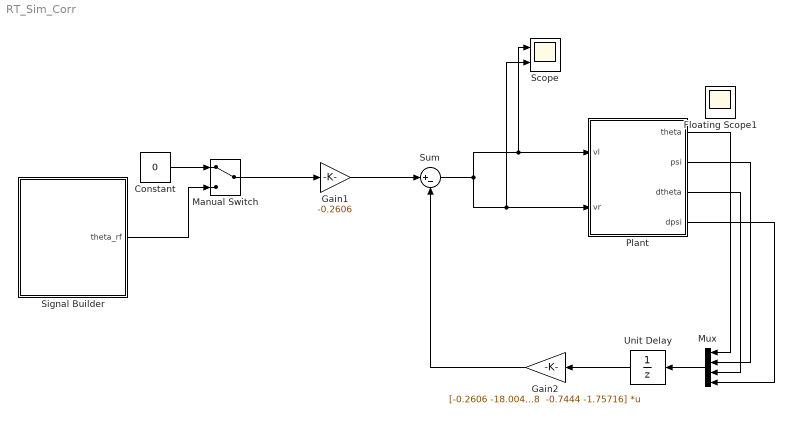
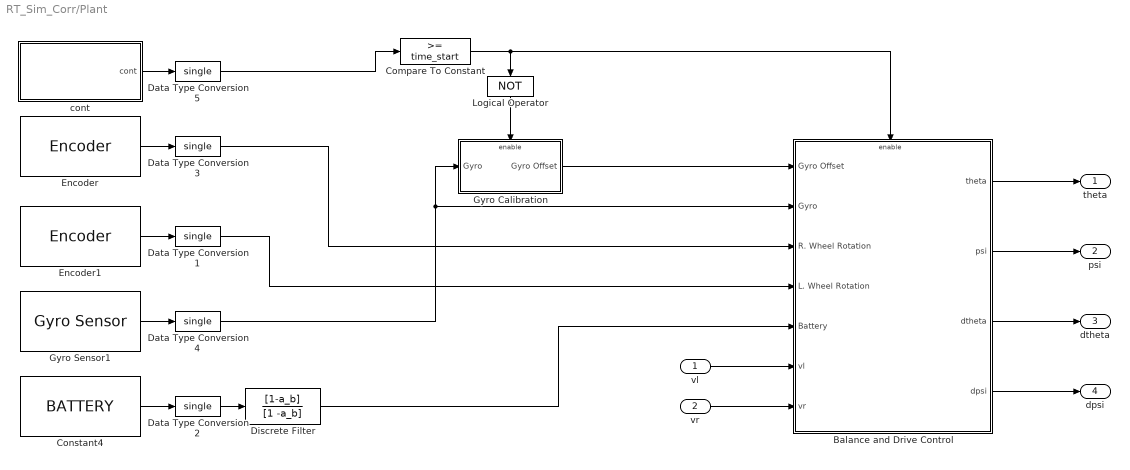
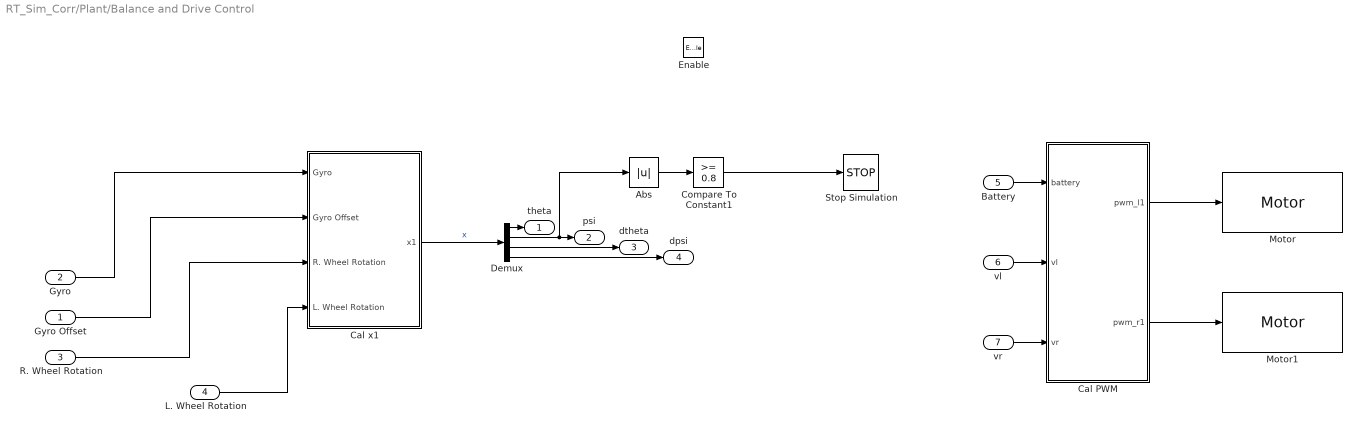
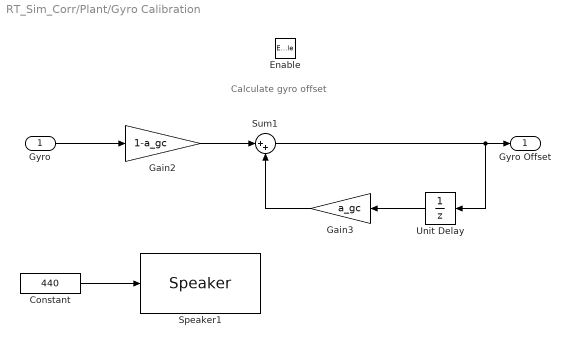
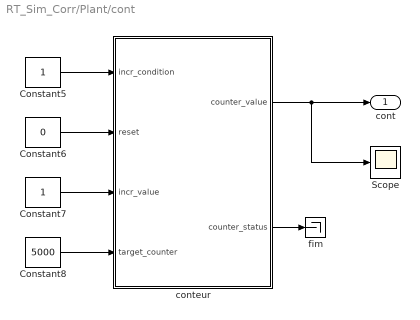
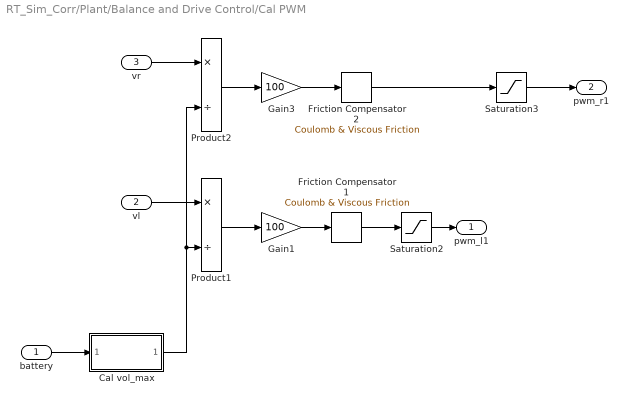
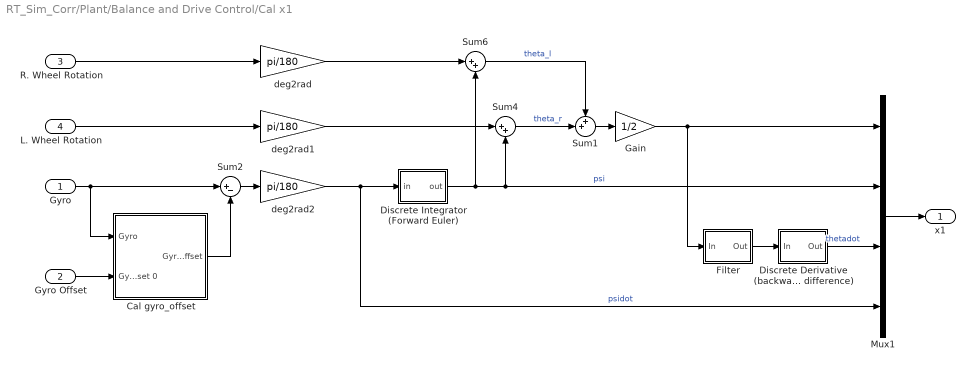
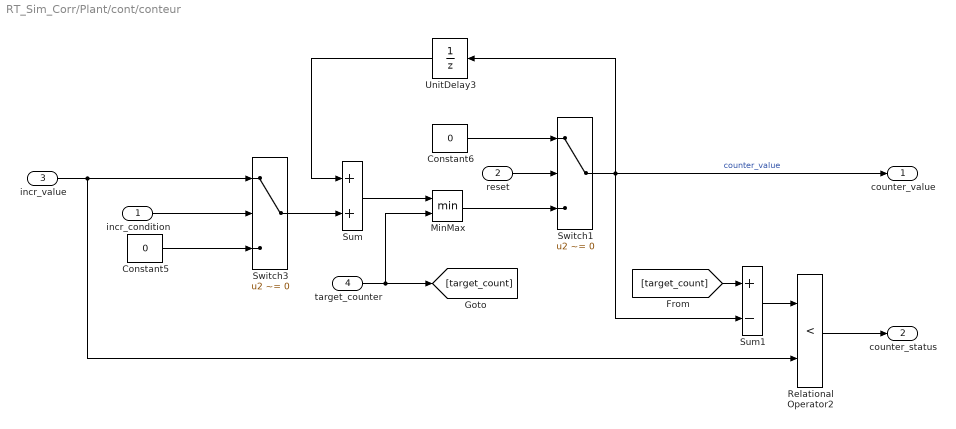
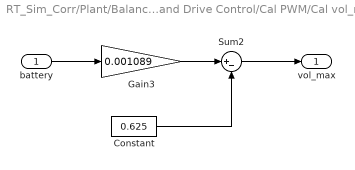
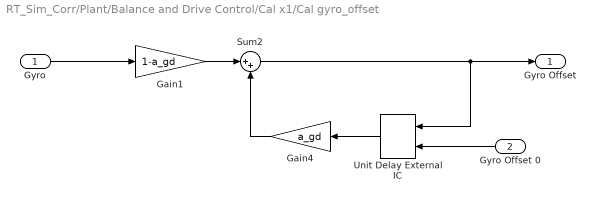
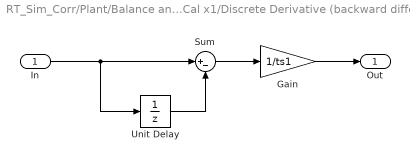
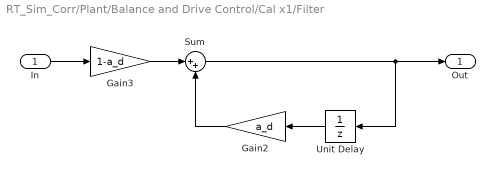
== system RT_Sim_Corr/Signal Builder ==
  Demux : Demux  Tag=STV Demux  Outputs=1
  FromWs : FromWorkspace  Tag=STV FromWs  VariableName=tuvar
  theta_rf : Outport  Tag=STV Outport
  wires:
  FromWs/1 -> Demux/1
  Demux/1 -> theta_rf/1

== system RT_Sim_Corr/Plant/Balance and Drive Control/Cal x1/Discrete Integrator (Forward Euler) ==
  in : Inport
  Gain : Gain  Gain=ts1  OutDataTypeStr=Inherit: Same as input  ParamDataTypeStr=Inherit: Same as input
  Sum : Sum  Inputs=|++  OutDataTypeStr=Inherit: Same as first input
  Unit Delay : UnitDelay  SampleTime=-1  HasFrameUpgradeWarning=on
  out : Outport
  wires:
  Unit Delay/1 -> Sum/2, out/1
  Gain/1 -> Sum/1
  Sum/1 -> Unit Delay/1
  in/1 -> Gain/1

/*
 * Classroom License -- for classroom instructional use only.  Not for
 * government, commercial, academic research, or other organizational use.
 *
 * File: RT_Sim_Corr.c
 *
 * Code generated for Simulink model 'RT_Sim_Corr'.
 *
 * Model version                  : 1.920
 * Simulink Coder version         : 9.3 (R2020a) 18-Nov-2019
 * C/C++ source code generated on : Mon Jul 27 10:23:26 2026
 *
 * Target selection: ert.tlc
 * Embedded hardware selection: ARM Compatible->ARM 9
 * Code generation objectives: Unspecified
 * Validation result: Not run
 */

#include "RT_Sim_Corr.h"
#include "RT_Sim_Corr_private.h"
#include "RT_Sim_Corr_dt.h"

/* Block signals (default storage) */
BlockIO_RT_Sim_Corr RT_Sim_Corr_B;

/* Block states (default storage) */
D_Work_RT_Sim_Corr RT_Sim_Corr_DWork;

/* Real-time model */
RT_MODEL_RT_Sim_Corr RT_Sim_Corr_M_;
RT_MODEL_RT_Sim_Corr *const RT_Sim_Corr_M = &RT_Sim_Corr_M_;
static void rate_scheduler(void);

/*
 *   This function updates active task flag for each subrate.
 * The function is called at model base rate, hence the
 * generated code self-manages all its subrates.
 */
static void rate_scheduler(void)
{
  /* Compute which subrates run during the next base time step.  Subrates
   * are an integer multiple of the base rate counter.  Therefore, the subtask
   * counter is reset when it reaches its limit (zero means run).
   */
  (RT_Sim_Corr_M->Timing.TaskCounters.TID[2])++;
  if ((RT_Sim_Corr_M->Timing.TaskCounters.TID[2]) > 49) {/* Sample time: [0.2s, 0.0s] */
    RT_Sim_Corr_M->Timing.TaskCounters.TID[2] = 0;
  }
}

/* Model step function */
void RT_Sim_Corr_step(void)
{
  /* local block i/o variables */
  real_T rtb_Saturation3;
  real32_T rtb_Sum2;
  real32_T rtb_Sum;
  real32_T rtb_Sum_nvdedzgoqp;
  int32_T rtb_Encoder1_0;
  int32_T rtb_Encoder1_1;
  int32_T rtb_Encoder1_2;
  int8_T tmp;
  boolean_T Compare;
  real32_T u0;
  real_T tmp_0;
  real_T rtb_Saturation3_tmp;

  /* Reset subsysRan breadcrumbs */
  srClearBC(RT_Sim_Corr_DWork.BalanceandDriveControl_SubsysRa);

  /* Reset subsysRan breadcrumbs */
  srClearBC(RT_Sim_Corr_DWork.GyroCalibration_SubsysRanBC);

  /* FromWorkspace: '<S2>/FromWs' */
  {
    real_T *pDataValues = (real_T *) RT_Sim_Corr_DWork.FromWs_PWORK.DataPtr;
    real_T *pTimeValues = (real_T *) RT_Sim_Corr_DWork.FromWs_PWORK.TimePtr;
    int_T currTimeIndex = RT_Sim_Corr_DWork.FromWs_IWORK.PrevIndex;
    real_T t = RT_Sim_Corr_M->Timing.t[0];

    /* Get index */
    if (t <= pTimeValues[0]) {
      currTimeIndex = 0;
    } else if (t >= pTimeValues[7]) {
      currTimeIndex = 6;
    } else {
      if (t < pTimeValues[currTimeIndex]) {
        while (t < pTimeValues[currTimeIndex]) {
          currTimeIndex--;
        }
      } else {
        while (t >= pTimeValues[currTimeIndex + 1]) {
          currTimeIndex++;
        }
      }
    }

    RT_Sim_Corr_DWork.FromWs_IWORK.PrevIndex = currTimeIndex;

    /* Post output */
    {
      real_T t1 = pTimeValues[currTimeIndex];
      real_T t2 = pTimeValues[currTimeIndex + 1];
      if (t1 == t2) {
        if (t < t1) {
          rtb_Saturation3 = pDataValues[currTimeIndex];
        } else {
          rtb_Saturation3 = pDataValues[currTimeIndex + 1];
        }
      } else {
        real_T f1 = (t2 - t) / (t2 - t1);
        real_T f2 = 1.0 - f1;
        real_T d1;
        real_T d2;
        int_T TimeIndex= currTimeIndex;
        d1 = pDataValues[TimeIndex];
        d2 = pDataValues[TimeIndex + 1];
        rtb_Saturation3 = (real_T) rtInterpolate(d1, d2, f1, f2);
        pDataValues += 8;
      }
    }
  }

  /* ManualSwitch: '<Root>/Manual Switch' incorporates:
   *  Constant: '<Root>/Constant'
   */
  if (RT_Sim_Corr_P.ManualSwitch_CurrentSetting == 1) {
    rtb_Saturation3 = RT_Sim_Corr_P.Constant_Value;
  }

  /* End of ManualSwitch: '<Root>/Manual Switch' */

  /* Sum: '<Root>/Sum' incorporates:
   *  Gain: '<Root>/Gain1'
   *  Gain: '<Root>/Gain2'
   *  UnitDelay: '<Root>/Unit Delay'
   */
  RT_Sim_Corr_B.Sum = RT_Sim_Corr_P.Gain1_Gain_cpx4lbewpy * rtb_Saturation3 -
    (((RT_Sim_Corr_P.Gain2_Gain_ezbw1uq0ur[0] *
       RT_Sim_Corr_DWork.UnitDelay_DSTATE[0] +
       RT_Sim_Corr_P.Gain2_Gain_ezbw1uq0ur[1] *
       RT_Sim_Corr_DWork.UnitDelay_DSTATE[1]) +
      RT_Sim_Corr_P.Gain2_Gain_ezbw1uq0ur[2] *
      RT_Sim_Corr_DWork.UnitDelay_DSTATE[2]) +
     RT_Sim_Corr_P.Gain2_Gain_ezbw1uq0ur[3] *
     RT_Sim_Corr_DWork.UnitDelay_DSTATE[3]);

  /* S-Function (ev3_gyro_sensor): '<S1>/Gyro Sensor1' */
  rtb_Encoder1_0 = getGyroSensorValue(4U);

  /* Switch: '<S21>/Switch1' incorporates:
   *  Constant: '<S21>/Constant6'
   *  Constant: '<S6>/Constant5'
   *  Constant: '<S6>/Constant6'
   *  Switch: '<S21>/Switch3'
   */
  if (RT_Sim_Corr_P.Constant6_Value_hyqvqn5fwb != 0.0F) {
    RT_Sim_Corr_B.counter_value = RT_Sim_Corr_P.Constant6_Value;
  } else {
    if (RT_Sim_Corr_P.Constant5_Value_jhrxeiwmg5 != 0.0F) {
      /* Switch: '<S21>/Switch3' incorporates:
       *  Constant: '<S6>/Constant7'
       */
      u0 = RT_Sim_Corr_P.Constant7_Value;
    } else {
      /* Switch: '<S21>/Switch3' incorporates:
       *  Constant: '<S21>/Constant5'
       */
      u0 = RT_Sim_Corr_P.Constant5_Value;
    }

    /* Sum: '<S21>/Sum' incorporates:
     *  UnitDelay: '<S21>/UnitDelay3'
     */
    u0 += RT_Sim_Corr_DWork.UnitDelay3_DSTATE;

    /* MinMax: '<S21>/MinMax' incorporates:
     *  Constant: '<S6>/Constant8'
     */
    if ((u0 < RT_Sim_Corr_P.Constant8_Value) || rtIsNaNF
        (RT_Sim_Corr_P.Constant8_Value)) {
      RT_Sim_Corr_B.counter_value = u0;
    } else {
      RT_Sim_Corr_B.counter_value = RT_Sim_Corr_P.Constant8_Value;
    }

    /* End of MinMax: '<S21>/MinMax' */
  }

  /* End of Switch: '<S21>/Switch1' */

  /* RelationalOperator: '<S4>/Compare' incorporates:
   *  Constant: '<S4>/Constant'
   */
  Compare = (RT_Sim_Corr_B.counter_value >= RT_Sim_Corr_P.time_start);

  /* Outputs for Enabled SubSystem: '<S1>/Gyro Calibration' incorporates:
   *  EnablePort: '<S5>/Enable'
   */
  /* Logic: '<S1>/Logical Operator' */
  if (!Compare) {
    if (1) {
      /* Sum: '<S5>/Sum1' incorporates:
       *  DataTypeConversion: '<S1>/Data Type Conversion4'
       *  Gain: '<S5>/Gain2'
       *  Gain: '<S5>/Gain3'
       *  S-Function (ev3_gyro_sensor): '<S1>/Gyro Sensor1'
       *  UnitDelay: '<S5>/Unit Delay'
       */
      RT_Sim_Corr_B.Sum1 = RT_Sim_Corr_P.Gain2_Gain * (real32_T)rtb_Encoder1_0 +
        RT_Sim_Corr_P.a_gc * RT_Sim_Corr_DWork.UnitDelay_DSTATE_cfkvxtl130;
    }

    if (RT_Sim_Corr_M->Timing.TaskCounters.TID[2] == 0) {
      /* S-Function (ev3_speaker): '<S20>/Speaker' incorporates:
       *  Constant: '<S5>/Constant'
       */
      playSoundFreqOnly(RT_Sim_Corr_P.Constant_Value_aljrxhz2pj,
                        RT_Sim_Corr_P.Speaker_speakerVolume,
                        RT_Sim_Corr_P.Speaker_p4);
    }

    if (1) {
      /* Update for UnitDelay: '<S5>/Unit Delay' */
      RT_Sim_Corr_DWork.UnitDelay_DSTATE_cfkvxtl130 = RT_Sim_Corr_B.Sum1;
    }

    srUpdateBC(RT_Sim_Corr_DWork.GyroCalibration_SubsysRanBC);
  }

  /* End of Logic: '<S1>/Logical Operator' */
  /* End of Outputs for SubSystem: '<S1>/Gyro Calibration' */

  /* S-Function (ev3_encoder): '<S1>/Encoder' */
  rtb_Encoder1_1 = getEncoderValueNoReset(2U);

  /* S-Function (ev3_encoder): '<S1>/Encoder1' */
  rtb_Encoder1_2 = getEncoderValueNoReset(3U);

  /* DiscreteFilter: '<S1>/Discrete Filter' incorporates:
   *  Constant: '<S1>/Constant4'
   */
  RT_Sim_Corr_DWork.DiscreteFilter_tmp = (RT_Sim_Corr_P.BATTERY -
    RT_Sim_Corr_P.DiscreteFilter_DenCoef[1] *
    RT_Sim_Corr_DWork.DiscreteFilter_states) /
    RT_Sim_Corr_P.DiscreteFilter_DenCoef[0];

  /* Outputs for Enabled SubSystem: '<S1>/Balance and Drive Control' incorporates:
   *  EnablePort: '<S3>/Enable'
   */
  RT_Sim_Corr_DWork.BalanceandDriveControl_MODE = Compare;
  if (RT_Sim_Corr_DWork.BalanceandDriveControl_MODE) {
    /* UnitDelay: '<S17>/Unit Delay' */
    RT_Sim_Corr_B.UnitDelay = RT_Sim_Corr_DWork.UnitDelay_DSTATE_hzuovbre5y;

    /* Stop: '<S3>/Stop Simulation' incorporates:
     *  Abs: '<S3>/Abs'
     *  Constant: '<S9>/Constant'
     *  RelationalOperator: '<S9>/Compare'
     */
    if ((real32_T)fabs(RT_Sim_Corr_B.UnitDelay) >=
        RT_Sim_Corr_P.CompareToConstant1_const) {
      rtmSetStopRequested(RT_Sim_Corr_M, 1);
    }

    /* End of Stop: '<S3>/Stop Simulation' */

    /* Switch: '<S19>/Init' incorporates:
     *  UnitDelay: '<S19>/FixPt Unit Delay1'
     *  UnitDelay: '<S19>/FixPt Unit Delay2'
     */
    if (RT_Sim_Corr_DWork.FixPtUnitDelay2_DSTATE != 0) {
      u0 = RT_Sim_Corr_B.Sum1;
    } else {
      u0 = RT_Sim_Corr_DWork.FixPtUnitDelay1_DSTATE;
    }

    /* End of Switch: '<S19>/Init' */

    /* Sum: '<S15>/Sum2' incorporates:
     *  DataTypeConversion: '<S1>/Data Type Conversion4'
     *  Gain: '<S15>/Gain1'
     *  Gain: '<S15>/Gain4'
     *  S-Function (ev3_gyro_sensor): '<S1>/Gyro Sensor1'
     */
    rtb_Sum2 = RT_Sim_Corr_P.Gain1_Gain_j0r0df4nzm * (real32_T)rtb_Encoder1_0 +
      RT_Sim_Corr_P.a_gd * u0;

    /* Gain: '<S8>/Gain' incorporates:
     *  DataTypeConversion: '<S1>/Data Type Conversion1'
     *  DataTypeConversion: '<S1>/Data Type Conversion3'
     *  Gain: '<S8>/deg2rad'
     *  Gain: '<S8>/deg2rad1'
     *  S-Function (ev3_encoder): '<S1>/Encoder'
     *  S-Function (ev3_encoder): '<S1>/Encoder1'
     *  Sum: '<S8>/Sum1'
     *  Sum: '<S8>/Sum4'
     *  Sum: '<S8>/Sum6'
     */
    RT_Sim_Corr_B.Gain = ((RT_Sim_Corr_P.deg2rad_Gain * (real32_T)rtb_Encoder1_1
      + RT_Sim_Corr_B.UnitDelay) + (RT_Sim_Corr_P.deg2rad1_Gain * (real32_T)
      rtb_Encoder1_2 + RT_Sim_Corr_B.UnitDelay)) * RT_Sim_Corr_P.Gain_Gain;

    /* Sum: '<S18>/Sum' incorporates:
     *  Gain: '<S18>/Gain2'
     *  Gain: '<S18>/Gain3'
     *  UnitDelay: '<S18>/Unit Delay'
     */
    rtb_Sum = RT_Sim_Corr_P.Gain3_Gain_hka0xvmyzz * RT_Sim_Corr_B.Gain +
      RT_Sim_Corr_P.a_d * RT_Sim_Corr_DWork.UnitDelay_DSTATE_orvhqhlbcp;

    /* Gain: '<S16>/Gain' incorporates:
     *  Sum: '<S16>/Sum'
     *  UnitDelay: '<S16>/Unit Delay'
     */
    RT_Sim_Corr_B.Gain_oopwalytwu = (rtb_Sum -
      RT_Sim_Corr_DWork.UnitDelay_DSTATE_mjna1kxy33) *
      RT_Sim_Corr_P.Gain_Gain_bwkvwsewsv;

    /* Gain: '<S8>/deg2rad2' incorporates:
     *  DataTypeConversion: '<S1>/Data Type Conversion4'
     *  S-Function (ev3_gyro_sensor): '<S1>/Gyro Sensor1'
     *  Sum: '<S8>/Sum2'
     */
    RT_Sim_Corr_B.psidot = ((real32_T)rtb_Encoder1_0 - rtb_Sum2) *
      RT_Sim_Corr_P.deg2rad2_Gain;

    /* Sum: '<S17>/Sum' incorporates:
     *  Gain: '<S17>/Gain'
     */
    rtb_Sum_nvdedzgoqp = RT_Sim_Corr_P.ts1 * RT_Sim_Corr_B.psidot +
      RT_Sim_Corr_B.UnitDelay;

    /* Product: '<S7>/Product1' incorporates:
     *  Constant: '<S12>/Constant'
     *  DiscreteFilter: '<S1>/Discrete Filter'
     *  Gain: '<S12>/Gain3'
     *  Product: '<S7>/Product2'
     *  Sum: '<S12>/Sum2'
     */
    rtb_Saturation3_tmp = RT_Sim_Corr_B.Sum /
      (RT_Sim_Corr_P.DiscreteFilter_NumCoef *
       RT_Sim_Corr_DWork.DiscreteFilter_tmp *
       RT_Sim_Corr_P.Gain3_Gain_gjv3wryppp -
       RT_Sim_Corr_P.Constant_Value_kzvkk53bcx);
    rtb_Saturation3 = rtb_Saturation3_tmp;

    /* Gain: '<S7>/Gain1' */
    rtb_Saturation3 *= RT_Sim_Corr_P.Gain1_Gain;

    /* Signum: '<S13>/Sign' */
    if (rtb_Saturation3 < 0.0) {
      tmp_0 = -1.0;
    } else if (rtb_Saturation3 > 0.0) {
      tmp_0 = 1.0;
    } else if (rtb_Saturation3 == 0.0) {
      tmp_0 = 0.0;
    } else {
      tmp_0 = (rtNaN);
    }

    /* End of Signum: '<S13>/Sign' */

    /* Sum: '<S13>/Sum' incorporates:
     *  Gain: '<S13>/Gain'
     *  Gain: '<S13>/Gain1'
     */
    rtb_Saturation3 = RT_Sim_Corr_P.pwm_offset * tmp_0 + RT_Sim_Corr_P.pwm_gain *
      rtb_Saturation3;

    /* Saturate: '<S7>/Saturation2' */
    if (rtb_Saturation3 > RT_Sim_Corr_P.Saturation2_UpperSat) {
      rtb_Saturation3 = RT_Sim_Corr_P.Saturation2_UpperSat;
    } else {
      if (rtb_Saturation3 < RT_Sim_Corr_P.Saturation2_LowerSat) {
        rtb_Saturation3 = RT_Sim_Corr_P.Saturation2_LowerSat;
      }
    }

    /* End of Saturate: '<S7>/Saturation2' */

    /* DataTypeConversion: '<S10>/Data Type Conversion' */
    tmp_0 = floor(rtb_Saturation3);
    if (tmp_0 < 128.0) {
      if (tmp_0 >= -128.0) {
        /* S-Function (ev3_motor): '<S10>/Motor' */
        tmp = (int8_T)tmp_0;
      } else {
        /* S-Function (ev3_motor): '<S10>/Motor' */
        tmp = MIN_int8_T;
      }
    } else {
      /* S-Function (ev3_motor): '<S10>/Motor' */
      tmp = MAX_int8_T;
    }

    /* End of DataTypeConversion: '<S10>/Data Type Conversion' */

    /* S-Function (ev3_motor): '<S10>/Motor' */
    setMotor(&tmp, 2U, 2U);

    /* Product: '<S7>/Product2' */
    rtb_Saturation3 = rtb_Saturation3_tmp;

    /* Gain: '<S7>/Gain3' */
    rtb_Saturation3 *= RT_Sim_Corr_P.Gain3_Gain;

    /* Signum: '<S14>/Sign' */
    if (rtb_Saturation3 < 0.0) {
      tmp_0 = -1.0;
    } else if (rtb_Saturation3 > 0.0) {
      tmp_0 = 1.0;
    } else if (rtb_Saturation3 == 0.0) {
      tmp_0 = 0.0;
    } else {
      tmp_0 = (rtNaN);
    }

    /* End of Signum: '<S14>/Sign' */

    /* Sum: '<S14>/Sum' incorporates:
     *  Gain: '<S14>/Gain'
     *  Gain: '<S14>/Gain1'
     */
    rtb_Saturation3 = RT_Sim_Corr_P.pwm_offset * tmp_0 + RT_Sim_Corr_P.pwm_gain *
      rtb_Saturation3;

    /* Saturate: '<S7>/Saturation3' */
    if (rtb_Saturation3 > RT_Sim_Corr_P.Saturation3_UpperSat) {
      rtb_Saturation3 = RT_Sim_Corr_P.Saturation3_UpperSat;
    } else {
      if (rtb_Saturation3 < RT_Sim_Corr_P.Saturation3_LowerSat) {
        rtb_Saturation3 = RT_Sim_Corr_P.Saturation3_LowerSat;
      }
    }

    /* End of Saturate: '<S7>/Saturation3' */

    /* DataTypeConversion: '<S11>/Data Type Conversion' */
    tmp_0 = floor(rtb_Saturation3);
    if (tmp_0 < 128.0) {
      if (tmp_0 >= -128.0) {
        /* S-Function (ev3_motor): '<S11>/Motor' */
        tmp = (int8_T)tmp_0;
      } else {
        /* S-Function (ev3_motor): '<S11>/Motor' */
        tmp = MIN_int8_T;
      }
    } else {
      /* S-Function (ev3_motor): '<S11>/Motor' */
      tmp = MAX_int8_T;
    }

    /* End of DataTypeConversion: '<S11>/Data Type Conversion' */

    /* S-Function (ev3_motor): '<S11>/Motor' */
    setMotor(&tmp, 3U, 2U);
    srUpdateBC(RT_Sim_Corr_DWork.BalanceandDriveControl_SubsysRa);
  }

  /* End of Outputs for SubSystem: '<S1>/Balance and Drive Control' */

  /* Update for UnitDelay: '<Root>/Unit Delay' */
  RT_Sim_Corr_DWork.UnitDelay_DSTATE[0] = RT_Sim_Corr_B.Gain;
  RT_Sim_Corr_DWork.UnitDelay_DSTATE[1] = RT_Sim_Corr_B.UnitDelay;
  RT_Sim_Corr_DWork.UnitDelay_DSTATE[2] = RT_Sim_Corr_B.Gain_oopwalytwu;
  RT_Sim_Corr_DWork.UnitDelay_DSTATE[3] = RT_Sim_Corr_B.psidot;

  /* Update for UnitDelay: '<S21>/UnitDelay3' */
  RT_Sim_Corr_DWork.UnitDelay3_DSTATE = RT_Sim_Corr_B.counter_value;

  /* Update for DiscreteFilter: '<S1>/Discrete Filter' */
  RT_Sim_Corr_DWork.DiscreteFilter_states = RT_Sim_Corr_DWork.DiscreteFilter_tmp;

  /* Update for Enabled SubSystem: '<S1>/Balance and Drive Control' incorporates:
   *  EnablePort: '<S3>/Enable'
   */
  if (RT_Sim_Corr_DWork.BalanceandDriveControl_MODE) {
    /* Update for UnitDelay: '<S17>/Unit Delay' */
    RT_Sim_Corr_DWork.UnitDelay_DSTATE_hzuovbre5y = rtb_Sum_nvdedzgoqp;

    /* Update for UnitDelay: '<S19>/FixPt Unit Delay2' incorporates:
     *  Constant: '<S19>/FixPt Constant'
     */
    RT_Sim_Corr_DWork.FixPtUnitDelay2_DSTATE = RT_Sim_Corr_P.FixPtConstant_Value;

    /* Update for UnitDelay: '<S19>/FixPt Unit Delay1' */
    RT_Sim_Corr_DWork.FixPtUnitDelay1_DSTATE = rtb_Sum2;

    /* Update for UnitDelay: '<S18>/Unit Delay' */
    RT_Sim_Corr_DWork.UnitDelay_DSTATE_orvhqhlbcp = rtb_Sum;

    /* Update for UnitDelay: '<S16>/Unit Delay' */
    RT_Sim_Corr_DWork.UnitDelay_DSTATE_mjna1kxy33 = rtb_Sum;
  }

  /* End of Update for SubSystem: '<S1>/Balance and Drive Control' */

  /* External mode */
  rtExtModeUploadCheckTrigger(3);

  {                                    /* Sample time: [0.0s, 0.0s] */
    rtExtModeUpload(0, (real_T)RT_Sim_Corr_M->Timing.t[0]);
  }

  {                                    /* Sample time: [0.004s, 0.0s] */
    rtExtModeUpload(1, (real_T)(((RT_Sim_Corr_M->Timing.clockTick1+
      RT_Sim_Corr_M->Timing.clockTickH1* 4294967296.0)) * 0.004));
  }

  if (RT_Sim_Corr_M->Timing.TaskCounters.TID[2] == 0) {/* Sample time: [0.2s, 0.0s] */
    rtExtModeUpload(2, (real_T)(((RT_Sim_Corr_M->Timing.clockTick2+
      RT_Sim_Corr_M->Timing.clockTickH2* 4294967296.0)) * 0.2));
  }

  /* signal main to stop simulation */
  {                                    /* Sample time: [0.0s, 0.0s] */
    if ((rtmGetTFinal(RT_Sim_Corr_M)!=-1) &&
        !((rtmGetTFinal(RT_Sim_Corr_M)-RT_Sim_Corr_M->Timing.t[0]) >
          RT_Sim_Corr_M->Timing.t[0] * (DBL_EPSILON))) {
      rtmSetErrorStatus(RT_Sim_Corr_M, "Simulation finished");
    }

    if (rtmGetStopRequested(RT_Sim_Corr_M)) {
      rtmSetErrorStatus(RT_Sim_Corr_M, "Simulation finished");
    }
  }

  /* Update absolute time for base rate */
  /* The "clockTick0" counts the number of times the code of this task has
   * been executed. The absolute time is the multiplication of "clockTick0"
   * and "Timing.stepSize0". Size of "clockTick0" ensures timer will not
   * overflow during the application lifespan selected.
   * Timer of this task consists of two 32 bit unsigned integers.
   * The two integers represent the low bits Timing.clockTick0 and the high bits
   * Timing.clockTickH0. When the low bit overflows to 0, the high bits increment.
   */
  if (!(++RT_Sim_Corr_M->Timing.clockTick0)) {
    ++RT_Sim_Corr_M->Timing.clockTickH0;
  }

  RT_Sim_Corr_M->Timing.t[0] = RT_Sim_Corr_M->Timing.clockTick0 *
    RT_Sim_Corr_M->Timing.stepSize0 + RT_Sim_Corr_M->Timing.clockTickH0 *
    RT_Sim_Corr_M->Timing.stepSize0 * 4294967296.0;

  {
    /* Update absolute timer for sample time: [0.004s, 0.0s] */
    /* The "clockTick1" counts the number of times the code of this task has
     * been executed. The resolution of this integer timer is 0.004, which is the step size
     * of the task. Size of "clockTick1" ensures timer will not overflow during the
     * application lifespan selected.
     * Timer of this task consists of two 32 bit unsigned integers.
     * The two integers represent the low bits Timing.clockTick1 and the high bits
     * Timing.clockTickH1. When the low bit overflows to 0, the high bits increment.
     */
    RT_Sim_Corr_M->Timing.clockTick1++;
    if (!RT_Sim_Corr_M->Timing.clockTick1) {
      RT_Sim_Corr_M->Timing.clockTickH1++;
    }
  }

  if (RT_Sim_Corr_M->Timing.TaskCounters.TID[2] == 0) {
    /* Update absolute timer for sample time: [0.2s, 0.0s] */
    /* The "clockTick2" counts the number of times the code of this task has
     * been executed. The resolution of this integer timer is 0.2, which is the step size
     * of the task. Size of "clockTick2" ensures timer will not overflow during the
     * application lifespan selected.
     * Timer of this task consists of two 32 bit unsigned integers.
     * The two integers represent the low bits Timing.clockTick2 and the high bits
     * Timing.clockTickH2. When the low bit overflows to 0, the high bits increment.
     */
    RT_Sim_Corr_M->Timing.clockTick2++;
    if (!RT_Sim_Corr_M->Timing.clockTick2) {
      RT_Sim_Corr_M->Timing.clockTickH2++;
    }
  }

  rate_scheduler();
}
